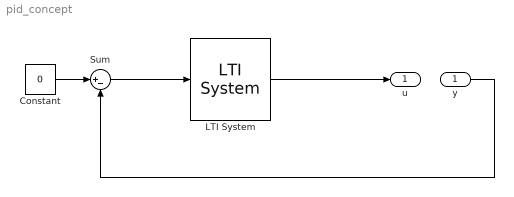
/*
 * File: pid_concept.c
 *
 * Code generated for Simulink model 'pid_concept'.
 *
 * Model version                  : 1.1
 * Simulink Coder version         : 9.4 (R2020b) 29-Jul-2020
 * C/C++ source code generated on : Thu Mar 24 15:31:41 2022
 *
 * Target selection: ert.tlc
 * Embedded hardware selection: Custom Processor->Custom Processor
 * Code generation objectives: Unspecified
 * Validation result: Not run
 */

#include "pid_concept.h"
#include "pid_concept_private.h"

/* Block signals (default storage) */
B_pid_concept_T pid_concept_B;

/* Continuous states */
X_pid_concept_T pid_concept_X;

/* External inputs (root inport signals with default storage) */
ExtU_pid_concept_T pid_concept_U;

/* External outputs (root outports fed by signals with default storage) */
ExtY_pid_concept_T pid_concept_Y;

/* Real-time model */
static RT_MODEL_pid_concept_T pid_concept_M_;
RT_MODEL_pid_concept_T *const pid_concept_M = &pid_concept_M_;

/*
 * This function updates continuous states using the ODE3 fixed-step
 * solver algorithm
 */
static void rt_ertODEUpdateContinuousStates(RTWSolverInfo *si )
{
  /* Solver Matrices */
  static const real_T rt_ODE3_A[3] = {
    1.0/2.0, 3.0/4.0, 1.0
  };

  static const real_T rt_ODE3_B[3][3] = {
    { 1.0/2.0, 0.0, 0.0 },

    { 0.0, 3.0/4.0, 0.0 },

    { 2.0/9.0, 1.0/3.0, 4.0/9.0 }
  };

  time_T t = rtsiGetT(si);
  time_T tnew = rtsiGetSolverStopTime(si);
  time_T h = rtsiGetStepSize(si);
  real_T *x = rtsiGetContStates(si);
  ODE3_IntgData *id = (ODE3_IntgData *)rtsiGetSolverData(si);
  real_T *y = id->y;
  real_T *f0 = id->f[0];
  real_T *f1 = id->f[1];
  real_T *f2 = id->f[2];
  real_T hB[3];
  int_T i;
  int_T nXc = 1;
  rtsiSetSimTimeStep(si,MINOR_TIME_STEP);

  /* Save the state values at time t in y, we'll use x as ynew. */
  (void) memcpy(y, x,
                (uint_T)nXc*sizeof(real_T));

  /* Assumes that rtsiSetT and ModelOutputs are up-to-date */
  /* f0 = f(t,y) */
  rtsiSetdX(si, f0);
  pid_concept_derivatives();

  /* f(:,2) = feval(odefile, t + hA(1), y + f*hB(:,1), args(:)(*)); */
  hB[0] = h * rt_ODE3_B[0][0];
  for (i = 0; i < nXc; i++) {
    x[i] = y[i] + (f0[i]*hB[0]);
  }

  rtsiSetT(si, t + h*rt_ODE3_A[0]);
  rtsiSetdX(si, f1);
  pid_concept_step();
  pid_concept_derivatives();

  /* f(:,3) = feval(odefile, t + hA(2), y + f*hB(:,2), args(:)(*)); */
  for (i = 0; i <= 1; i++) {
    hB[i] = h * rt_ODE3_B[1][i];
  }

  for (i = 0; i < nXc; i++) {
    x[i] = y[i] + (f0[i]*hB[0] + f1[i]*hB[1]);
  }

  rtsiSetT(si, t + h*rt_ODE3_A[1]);
  rtsiSetdX(si, f2);
  pid_concept_step();
  pid_concept_derivatives();

  /* tnew = t + hA(3);
     ynew = y + f*hB(:,3); */
  for (i = 0; i <= 2; i++) {
    hB[i] = h * rt_ODE3_B[2][i];
  }

  for (i = 0; i < nXc; i++) {
    x[i] = y[i] + (f0[i]*hB[0] + f1[i]*hB[1] + f2[i]*hB[2]);
  }

  rtsiSetT(si, tnew);
  rtsiSetSimTimeStep(si,MAJOR_TIME_STEP);
}

/* Model step function */
void pid_concept_step(void)
{
  if (rtmIsMajorTimeStep(pid_concept_M)) {
    /* set solver stop time */
    rtsiSetSolverStopTime(&pid_concept_M->solverInfo,
                          ((pid_concept_M->Timing.clockTick0+1)*
      pid_concept_M->Timing.stepSize0));
  }                                    /* end MajorTimeStep */

  /* Update absolute time of base rate at minor time step */
  if (rtmIsMinorTimeStep(pid_concept_M)) {
    pid_concept_M->Timing.t[0] = rtsiGetT(&pid_concept_M->solverInfo);
  }

  /* Sum: '<S2>/Sum' incorporates:
   *  Constant: '<S2>/Constant'
   *  Inport: '<Root>/y'
   */
  pid_concept_B.Sum = 0.0 - pid_concept_U.y;

  /* Outport: '<Root>/u' incorporates:
   *  StateSpace: '<S1>/Internal'
   */
  pid_concept_Y.u = 3.0 * pid_concept_X.Internal_CSTATE + 12.0 *
    pid_concept_B.Sum;
  if (rtmIsMajorTimeStep(pid_concept_M)) {
    rt_ertODEUpdateContinuousStates(&pid_concept_M->solverInfo);

    /* Update absolute time for base rate */
    /* The "clockTick0" counts the number of times the code of this task has
     * been executed. The absolute time is the multiplication of "clockTick0"
     * and "Timing.stepSize0". Size of "clockTick0" ensures timer will not
     * overflow during the application lifespan selected.
     */
    ++pid_concept_M->Timing.clockTick0;
    pid_concept_M->Timing.t[0] = rtsiGetSolverStopTime
      (&pid_concept_M->solverInfo);

    {
      /* Update absolute timer for sample time: [0.01s, 0.0s] */
      /* The "clockTick1" counts the number of times the code of this task has
       * been executed. The resolution of this integer timer is 0.01, which is the step size
       * of the task. Size of "clockTick1" ensures timer will not overflow during the
       * application lifespan selected.
       */
      pid_concept_M->Timing.clockTick1++;
    }
  }                                    /* end MajorTimeStep */
}
